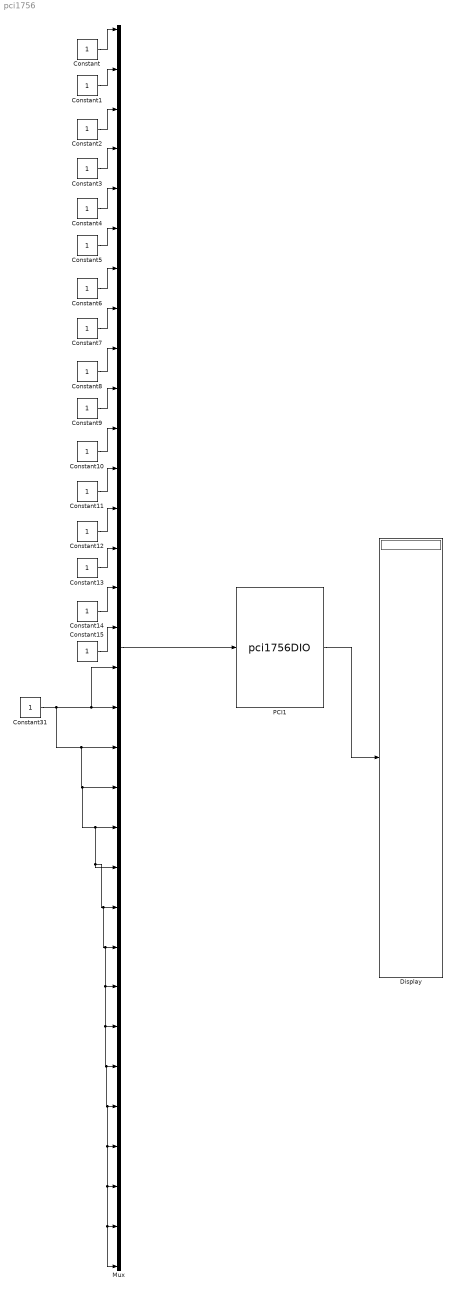
/*
 * pci1756.c
 *
 * Code generation for model "pci1756".
 *
 * Model version              : 1.5
 * Simulink Coder version : 8.11 (R2016b) 25-Aug-2016
 * C source code generated on : Sat Jul 10 11:39:53 2021
 *
 * Target selection: slrt.tlc
 * Note: GRT includes extra infrastructure and instrumentation for prototyping
 * Embedded hardware selection: Generic->32-bit x86 compatible
 * Code generation objectives: Unspecified
 * Validation result: Not run
 */

#include "rt_logging_mmi.h"
#include "pci1756_capi.h"
#include "pci1756.h"
#include "pci1756_private.h"

const real_T pci1756_RGND = 0.0;       /* real_T ground */

/* Block signals (auto storage) */
B_pci1756_T pci1756_B;

/* Block states (auto storage) */
DW_pci1756_T pci1756_DW;

/* Real-time model */
RT_MODEL_pci1756_T pci1756_M_;
RT_MODEL_pci1756_T *const pci1756_M = &pci1756_M_;

/* Model output function */
static void pci1756_output(void)
{
  /* Constant: '<Root>/Constant' */
  pci1756_B.Constant = pci1756_P.Constant_Value;

  /* Constant: '<Root>/Constant1' */
  pci1756_B.Constant1 = pci1756_P.Constant1_Value;

  /* Constant: '<Root>/Constant2' */
  pci1756_B.Constant2 = pci1756_P.Constant2_Value;

  /* Constant: '<Root>/Constant3' */
  pci1756_B.Constant3 = pci1756_P.Constant3_Value;

  /* Constant: '<Root>/Constant4' */
  pci1756_B.Constant4 = pci1756_P.Constant4_Value;

  /* Constant: '<Root>/Constant5' */
  pci1756_B.Constant5 = pci1756_P.Constant5_Value;

  /* Constant: '<Root>/Constant6' */
  pci1756_B.Constant6 = pci1756_P.Constant6_Value;

  /* Constant: '<Root>/Constant7' */
  pci1756_B.Constant7 = pci1756_P.Constant7_Value;

  /* Constant: '<Root>/Constant8' */
  pci1756_B.Constant8 = pci1756_P.Constant8_Value;

  /* Constant: '<Root>/Constant9' */
  pci1756_B.Constant9 = pci1756_P.Constant9_Value;

  /* Constant: '<Root>/Constant10' */
  pci1756_B.Constant10 = pci1756_P.Constant10_Value;

  /* Constant: '<Root>/Constant11' */
  pci1756_B.Constant11 = pci1756_P.Constant11_Value;

  /* Constant: '<Root>/Constant12' */
  pci1756_B.Constant12 = pci1756_P.Constant12_Value;

  /* Constant: '<Root>/Constant13' */
  pci1756_B.Constant13 = pci1756_P.Constant13_Value;

  /* Constant: '<Root>/Constant14' */
  pci1756_B.Constant14 = pci1756_P.Constant14_Value;

  /* Constant: '<Root>/Constant15' */
  pci1756_B.Constant15 = pci1756_P.Constant15_Value;

  /* Constant: '<Root>/Constant31' */
  pci1756_B.Constant31 = pci1756_P.Constant31_Value;

  /* Level2 S-Function Block: '<Root>/PCI1' (pci1756DIO) */
  {
    SimStruct *rts = pci1756_M->childSfunctions[0];
    sfcnOutputs(rts, 0);
  }
}

/* Model update function */
static void pci1756_update(void)
{
  /* Update absolute time for base rate */
  /* The "clockTick0" counts the number of times the code of this task has
   * been executed. The absolute time is the multiplication of "clockTick0"
   * and "Timing.stepSize0". Size of "clockTick0" ensures timer will not
   * overflow during the application lifespan selected.
   * Timer of this task consists of two 32 bit unsigned integers.
   * The two integers represent the low bits Timing.clockTick0 and the high bits
   * Timing.clockTickH0. When the low bit overflows to 0, the high bits increment.
   */
  if (!(++pci1756_M->Timing.clockTick0)) {
    ++pci1756_M->Timing.clockTickH0;
  }

  pci1756_M->Timing.t[0] = pci1756_M->Timing.clockTick0 *
    pci1756_M->Timing.stepSize0 + pci1756_M->Timing.clockTickH0 *
    pci1756_M->Timing.stepSize0 * 4294967296.0;
}
